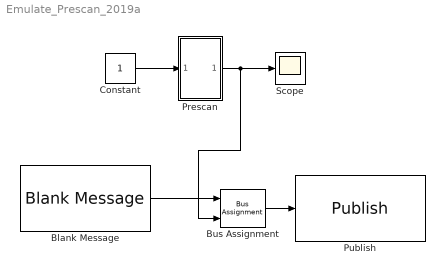
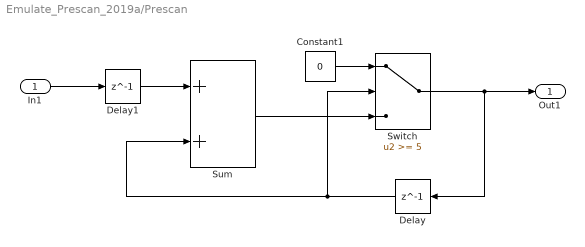
/*
 * Emulate_Prescan_2019a.c
 *
 * Academic License - for use in teaching, academic research, and meeting
 * course requirements at degree granting institutions only.  Not for
 * government, commercial, or other organizational use.
 *
 * Code generation for model "Emulate_Prescan_2019a".
 *
 * Model version              : 1.7
 * Simulink Coder version : 9.1 (R2019a) 23-Nov-2018
 * C source code generated on : Mon Nov 30 16:37:17 2020
 *
 * Target selection: ps.tlc
 * Note: GRT includes extra infrastructure and instrumentation for prototyping
 * Embedded hardware selection: Generic->Unspecified (assume 32-bit Generic)
 * Code generation objectives: Unspecified
 * Validation result: Not run
 */

#include "Emulate_Prescan_2019a_capi.h"
#include "Emulate_Prescan_2019a.h"
#include "Emulate_Prescan_2019a_private.h"

/* user code (top of source file) */
#include "Emulate_Prescan_2019a_prescan.h"

/* Block signals (default storage) */
B_Emulate_Prescan_2019a_T Emulate_Prescan_2019a_B;

/* Block states (default storage) */
DW_Emulate_Prescan_2019a_T Emulate_Prescan_2019a_DW;

/* Real-time model */
RT_MODEL_Emulate_Prescan_2019_T Emulate_Prescan_2019a_M_;
RT_MODEL_Emulate_Prescan_2019_T *const Emulate_Prescan_2019a_M =
  &Emulate_Prescan_2019a_M_;

/* Forward declaration for local functions */
static void matlabCodegenHandle_matlabCodeg(robotics_slros_internal_block_T *obj);
static void matlabCodegenHandle_matlabCodeg(robotics_slros_internal_block_T *obj)
{
  if (!obj->matlabCodegenIsDeleted) {
    obj->matlabCodegenIsDeleted = true;
  }
}

/* Model output function */
static void Emulate_Prescan_2019a_output(void)
{
  SL_Bus_Emulate_Prescan_2019a_std_msgs_UInt16 rtb_BusAssignment;
  real_T tmp;

  /* Switch: '<S2>/Switch' incorporates:
   *  Constant: '<S2>/Constant1'
   *  Delay: '<S2>/Delay'
   *  Delay: '<S2>/Delay1'
   *  Sum: '<S2>/Sum'
   */
  if (Emulate_Prescan_2019a_DW.Delay_DSTATE >=
      Emulate_Prescan_2019a_P.Switch_Threshold) {
    tmp = floor(Emulate_Prescan_2019a_P.Constant1_Value);
    if (rtIsNaN(tmp) || rtIsInf(tmp)) {
      tmp = 0.0;
    } else {
      tmp = fmod(tmp, 65536.0);
    }

    Emulate_Prescan_2019a_B.Switch = (uint16_T)(tmp < 0.0 ? (int32_T)(uint16_T)
      -(int16_T)(uint16_T)-tmp : (int32_T)(uint16_T)tmp);
  } else {
    Emulate_Prescan_2019a_B.Switch = (uint16_T)((uint32_T)
      Emulate_Prescan_2019a_DW.Delay1_DSTATE +
      Emulate_Prescan_2019a_DW.Delay_DSTATE);
  }

  /* End of Switch: '<S2>/Switch' */

  /* BusAssignment: '<Root>/Bus Assignment' */
  rtb_BusAssignment.Data = Emulate_Prescan_2019a_B.Switch;

  /* Outputs for Atomic SubSystem: '<Root>/Publish' */
  /* MATLABSystem: '<S3>/SinkBlock' */
  Pub_Emulate_Prescan_2019a_12.publish(&rtb_BusAssignment);

  /* End of Outputs for SubSystem: '<Root>/Publish' */
}

/* Model update function */
static void Emulate_Prescan_2019a_update(void)
{
  /* Update for Delay: '<S2>/Delay' */
  Emulate_Prescan_2019a_DW.Delay_DSTATE = Emulate_Prescan_2019a_B.Switch;

  /* Update for Delay: '<S2>/Delay1' incorporates:
   *  Constant: '<Root>/Constant'
   */
  Emulate_Prescan_2019a_DW.Delay1_DSTATE =
    Emulate_Prescan_2019a_P.Constant_Value_a;

  /* Update absolute time for base rate */
  /* The "clockTick0" counts the number of times the code of this task has
   * been executed. The absolute time is the multiplication of "clockTick0"
   * and "Timing.stepSize0". Size of "clockTick0" ensures timer will not
   * overflow during the application lifespan selected.
   * Timer of this task consists of two 32 bit unsigned integers.
   * The two integers represent the low bits Timing.clockTick0 and the high bits
   * Timing.clockTickH0. When the low bit overflows to 0, the high bits increment.
   */
  if (!(++Emulate_Prescan_2019a_M->Timing.clockTick0)) {
    ++Emulate_Prescan_2019a_M->Timing.clockTickH0;
  }

  Emulate_Prescan_2019a_M->Timing.t[0] =
    Emulate_Prescan_2019a_M->Timing.clockTick0 *
    Emulate_Prescan_2019a_M->Timing.stepSize0 +
    Emulate_Prescan_2019a_M->Timing.clockTickH0 *
    Emulate_Prescan_2019a_M->Timing.stepSize0 * 4294967296.0;
}
